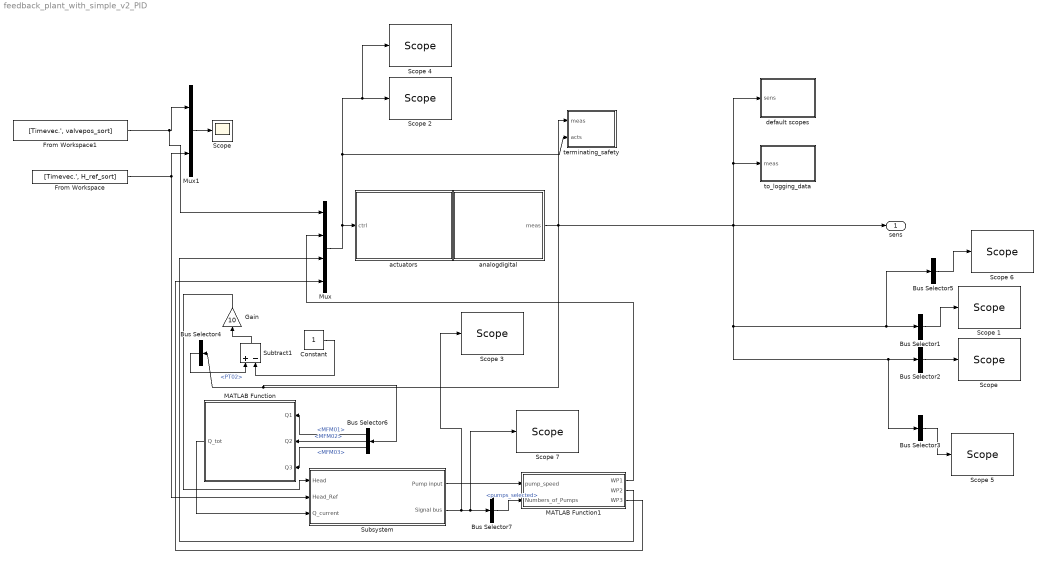
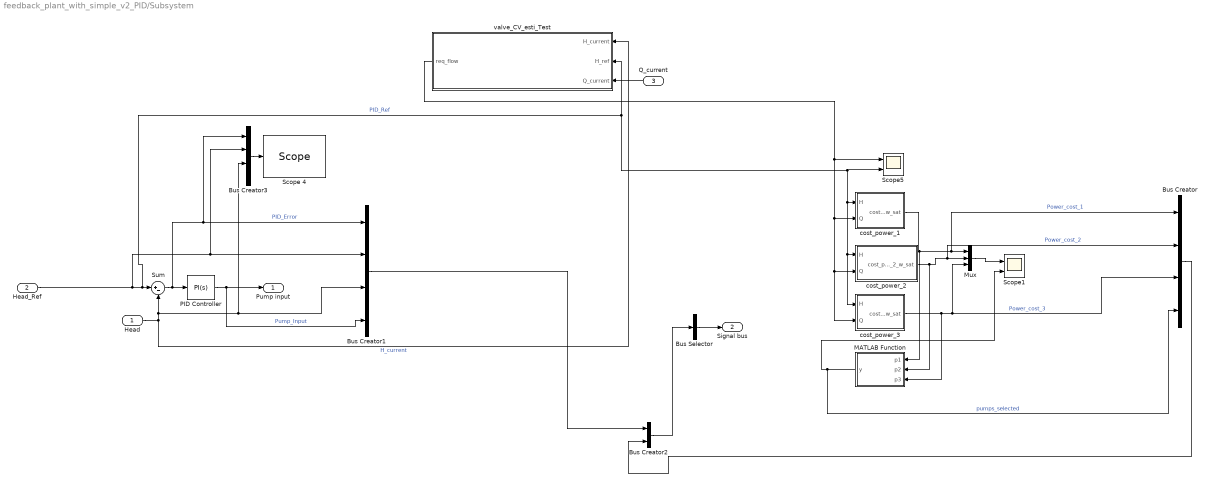
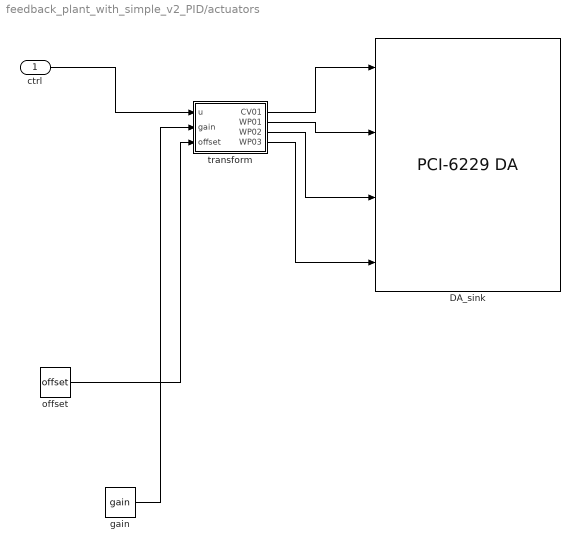
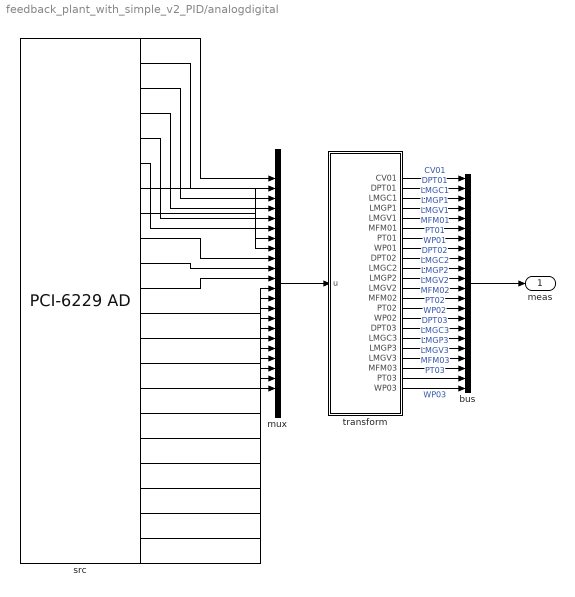
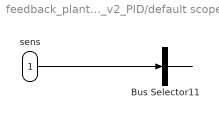
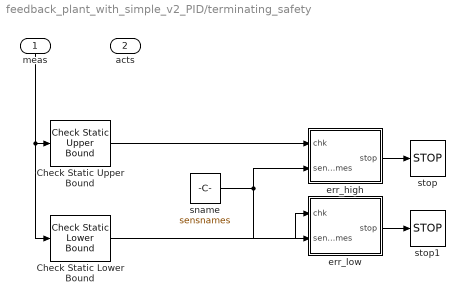
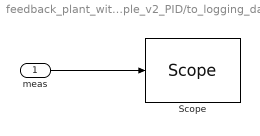
== matlab function feedback_plant_with_simple_v2_PID/actuators/transform ==
function [CV01,WP01,WP02,WP03]  = fcn(u,gain,offset)
   y = u.*gain-offset;
CV01 = y(1);
WP01 = y(2);
WP02 = y(3);
WP03 = y(4);

== matlab function feedback_plant_with_simple_v2_PID/analogdigital/transform ==
function [CV01,DPT01,LMGC1,LMGP1,LMGV1,MFM01,PT01,WP01,DPT02,LMGC2,LMGP2,LMGV2,MFM02,PT02,WP02,DPT03,LMGC3,LMGP3,LMGV3,MFM03,PT03,WP03]  = fcn(u,gain,offset)
   y = u(:).*gain(:)-offset(:);
CV01 = y(1);
DPT01 = y(2);
LMGC1 = y(3);
LMGP1 = y(4);
LMGV1 = y(5);
MFM01 = y(6);
PT01 = y(7);
WP01 = y(8);
DPT02 = y(9);
LMGC2 = y(10);
LMGP2 = y(11);
LMGV2 = y(12);
MFM02 = y(13);
PT02 = y(14);
WP02 = y(15);
DPT03 = y(16);
LMGC3 = y(17);
LMGP3 = y(18);
LMGV3 = y(19);
MFM03 = y(20);
PT03 = y(21);
WP03 = y(22);

== matlab function feedback_plant_with_simple_v2_PID/MATLAB Function ==
function Q_tot = fcn(Q1, Q2, Q3)

Q_tot = ((Q1 + Q2 + Q3) *60 * 60)/1000;

== matlab function feedback_plant_with_simple_v2_PID/MATLAB Function1 ==
function [WP1, WP2, WP3] = fcn(pump_speed, Numbers_of_Pumps)
WP1 = 0;
WP2 = 0;
WP3 = 0;
if Numbers_of_Pumps == 1
    WP1 = pump_speed;
elseif Numbers_of_Pumps == 2
    WP1 = 1;
    WP2 = pump_speed;
elseif Numbers_of_Pumps == 3
    WP1 = 1;
    WP2 = 1;
    WP3 = pump_speed;
end

== matlab function feedback_plant_with_simple_v2_PID/Subsystem/MATLAB Function ==
 function y = fcn(p1, p2, p3)
y = 1;
if p2 == 100000
    %2 pumps?
    y = 3;
elseif p1 == 50000
    y = 2;
    %3 pumps? 
end

== matlab function feedback_plant_with_simple_v2_PID/Subsystem/cost_power_1 ==
function cost_power_1_w_sat = cost_power_1(H,Q)
%#codegen

%    This function was generated by the Symbolic Math Toolbox version 7.0.
%    22-Aug-2016 11:17:26

t2 = H.^5.314163576626763e-1;
t3 = t2.*4.673851686285024e2;
t4 = Q.^1.284992200316062;
t5 = t4.*9.427556616520734e1;
t13 = H.*Q.*3.590092811013802;
t6 = t3+t5-t13;
t7 = H.^1.157084314722127;
t8 = t7.*6.132915089183577;
t9 = Q.^2.682790628284203;
t10 = t9.*1.270953547543209;
t11 = H.*Q.*2.633327680950001;
t12 = t8+t10+t11;
cost_power_1_w_sat = double(((t6 <= 1.0e3) || (1.5e3 < t12)) || (3.5e3 <= t6)).*5.0e4+t12.*double(((1.0e3 < t6) && (t12 <= 1.5e3)) && (t6 < 3.5e3));

== matlab function feedback_plant_with_simple_v2_PID/Subsystem/cost_power_2 ==
function cost_power_2_w_sat = cost_power_2(H,Q)
%#codegen

%    This function was generated by the Symbolic Math Toolbox version 7.0.
%    22-Aug-2016 11:17:26

t2 = Q.*(1.0./2.0);
t3 = t2.^1.284992200316062;
t4 = t3.*9.427556616520734e1;
t5 = H.^5.314163576626763e-1;
t6 = t5.*4.673851686285024e2;
t14 = H.*Q.*1.795046405506901;
t7 = t4+t6-t14;
t8 = H.^1.157084314722127;
t9 = t8.*6.132915089183577;
t10 = H.*Q.*1.316663840475001;
t11 = t2.^2.682790628284203;
t12 = t11.*1.270953547543209;
t13 = t9+t10+t12;
cost_power_2_w_sat = double(((t7 <= 1.0e3) || (1.5e3 < t13)) || (3.5e3 <= t7)).*1.0e5+t13.*double(((1.0e3 < t7) && (t13 <= 1.5e3)) && (t7 < 3.5e3)).*2.0;

== matlab function feedback_plant_with_simple_v2_PID/Subsystem/cost_power_3 ==
function cost_power_3_w_sat = cost_power_3(H,Q)
%#codegen

%    This function was generated by the Symbolic Math Toolbox version 7.0.
%    22-Aug-2016 11:17:26

t2 = Q.*(1.0./3.0);
t3 = t2.^1.284992200316062;
t4 = t3.*9.427556616520734e1;
t5 = H.^5.314163576626763e-1;
t6 = t5.*4.673851686285024e2;
t14 = H.*Q.*1.196697603671267;
t7 = t4+t6-t14;
t8 = H.^1.157084314722127;
t9 = t8.*6.132915089183577;
t10 = H.*Q.*8.777758936500004e-1;
t11 = t2.^2.682790628284203;
t12 = t11.*1.270953547543209;
t13 = t9+t10+t12;
cost_power_3_w_sat = double(((t7 <= 1.0e3) || (1.5e3 < t13)) || (3.5e3 <= t7)).*1.5e5+t13.*double(((1.0e3 < t7) && (t13 <= 1.5e3)) && (t7 < 3.5e3)).*3.0;

== matlab function feedback_plant_with_simple_v2_PID/Subsystem/valve_CV_esti_Test ==
function req_flow = valve_CV_esti_Test(H_current,H_ref,Q_current)
%#codegen

%    This function was generated by the Symbolic Math Toolbox version 7.0.
%    22-Aug-2016 11:17:28

req_flow = 1.0./sqrt(H_current).*sqrt(H_ref).*Q_current;

== matlab function feedback_plant_with_simple_v2_PID/terminating_safety/err_high ==
function stop  = fcn(chk, sensnames)
%#codegen
%test = char(sensnames.');
test = sensnames.';
k = find(test == 47);
k = [0 k];
k = [k numel(test)];
stop = 0;
for i = 1:numel(chk)
    if chk(i) == 0
        str = char(test(k(i)+1:k(i+1)-1));
        Error = [str ': VALUE TOO HIGH ']
        coder.ceval('printf', ['%s' 10 0], Error);
        stop = stop+1;
    end
end

== matlab function feedback_plant_with_simple_v2_PID/terminating_safety/err_low ==
function stop  = fcn(chk, sensnames)
%#codegen
test = char(sensnames.');
k = strfind(test, '/');
k = [0 k];
k = [k numel(sensnames)];
stop = 0;
for i = 1:numel(chk)
    if chk(i) == 0
        str = char(test(k(i)+1:k(i+1)-1));
        Error = [str ': VALUE TOO LOW']
        coder.ceval('printf', ['%s' 10 0], Error);
        stop = stop+1;
    end
end

/*
 * feedback_plant_with_simple_v2_PID.c
 *
 * Academic License - for use in teaching, academic research, and meeting
 * course requirements at degree granting institutions only.  Not for
 * government, commercial, or other organizational use.
 *
 * Code generation for model "feedback_plant_with_simple_v2_PID".
 *
 * Model version              : 1.362
 * Simulink Coder version : 8.10 (R2016a) 10-Feb-2016
 * C source code generated on : Thu Aug 25 14:37:08 2016
 *
 * Target selection: slrt.tlc
 * Note: GRT includes extra infrastructure and instrumentation for prototyping
 * Embedded hardware selection: Generic->32-bit x86 compatible
 * Code generation objectives: Unspecified
 * Validation result: Not run
 */

#include "rt_logging_mmi.h"
#include "feedback_plant_with_simple_v2_PID_capi.h"
#include "feedback_plant_with_simple_v2_PID.h"
#include "feedback_plant_with_simple_v2_PID_private.h"

/* Block signals (auto storage) */
B_feedback_plant_with_simple_v2_PID_T feedback_plant_with_simple_v2_PID_B;

/* Continuous states */
X_feedback_plant_with_simple_v2_PID_T feedback_plant_with_simple_v2_PID_X;

/* Block states (auto storage) */
DW_feedback_plant_with_simple_v2_PID_T feedback_plant_with_simple_v2_PID_DW;

/* External outputs (root outports fed by signals with auto storage) */
ExtY_feedback_plant_with_simple_v2_PID_T feedback_plant_with_simple_v2_PID_Y;

/* Real-time model */
RT_MODEL_feedback_plant_with_simple_v2_PID_T
  feedback_plant_with_simple_v2_PID_M_;
RT_MODEL_feedback_plant_with_simple_v2_PID_T *const
  feedback_plant_with_simple_v2_PID_M = &feedback_plant_with_simple_v2_PID_M_;

/*
 * This function updates continuous states using the ODE3 fixed-step
 * solver algorithm
 */
static void rt_ertODEUpdateContinuousStates(RTWSolverInfo *si )
{
  /* Solver Matrices */
  static const real_T rt_ODE3_A[3] = {
    1.0/2.0, 3.0/4.0, 1.0
  };

  static const real_T rt_ODE3_B[3][3] = {
    { 1.0/2.0, 0.0, 0.0 },

    { 0.0, 3.0/4.0, 0.0 },

    { 2.0/9.0, 1.0/3.0, 4.0/9.0 }
  };

  time_T t = rtsiGetT(si);
  time_T tnew = rtsiGetSolverStopTime(si);
  time_T h = rtsiGetStepSize(si);
  real_T *x = rtsiGetContStates(si);
  ODE3_IntgData *id = (ODE3_IntgData *)rtsiGetSolverData(si);
  real_T *y = id->y;
  real_T *f0 = id->f[0];
  real_T *f1 = id->f[1];
  real_T *f2 = id->f[2];
  real_T hB[3];
  int_T i;
  int_T nXc = 1;
  rtsiSetSimTimeStep(si,MINOR_TIME_STEP);

  /* Save the state values at time t in y, we'll use x as ynew. */
  (void) memcpy(y, x,
                (uint_T)nXc*sizeof(real_T));

  /* Assumes that rtsiSetT and ModelOutputs are up-to-date */
  /* f0 = f(t,y) */
  rtsiSetdX(si, f0);
  feedback_plant_with_simple_v2_PID_derivatives();

  /* f(:,2) = feval(odefile, t + hA(1), y + f*hB(:,1), args(:)(*)); */
  hB[0] = h * rt_ODE3_B[0][0];
  for (i = 0; i < nXc; i++) {
    x[i] = y[i] + (f0[i]*hB[0]);
  }

  rtsiSetT(si, t + h*rt_ODE3_A[0]);
  rtsiSetdX(si, f1);
  feedback_plant_with_simple_v2_PID_output();
  feedback_plant_with_simple_v2_PID_derivatives();

  /* f(:,3) = feval(odefile, t + hA(2), y + f*hB(:,2), args(:)(*)); */
  for (i = 0; i <= 1; i++) {
    hB[i] = h * rt_ODE3_B[1][i];
  }

  for (i = 0; i < nXc; i++) {
    x[i] = y[i] + (f0[i]*hB[0] + f1[i]*hB[1]);
  }

  rtsiSetT(si, t + h*rt_ODE3_A[1]);
  rtsiSetdX(si, f2);
  feedback_plant_with_simple_v2_PID_output();
  feedback_plant_with_simple_v2_PID_derivatives();

  /* tnew = t + hA(3);
     ynew = y + f*hB(:,3); */
  for (i = 0; i <= 2; i++) {
    hB[i] = h * rt_ODE3_B[2][i];
  }

  for (i = 0; i < nXc; i++) {
    x[i] = y[i] + (f0[i]*hB[0] + f1[i]*hB[1] + f2[i]*hB[2]);
  }

  rtsiSetT(si, tnew);
  rtsiSetSimTimeStep(si,MAJOR_TIME_STEP);
}

real_T rt_powd_snf(real_T u0, real_T u1)
{
  real_T y;
  real_T tmp;
  real_T tmp_0;
  if (rtIsNaN(u0) || rtIsNaN(u1)) {
    y = (rtNaN);
  } else {
    tmp = fabs(u0);
    tmp_0 = fabs(u1);
    if (rtIsInf(u1)) {
      if (tmp == 1.0) {
        y = (rtNaN);
      } else if (tmp > 1.0) {
        if (u1 > 0.0) {
          y = (rtInf);
        } else {
          y = 0.0;
        }
      } else if (u1 > 0.0) {
        y = 0.0;
      } else {
        y = (rtInf);
      }
    } else if (tmp_0 == 0.0) {
      y = 1.0;
    } else if (tmp_0 == 1.0) {
      if (u1 > 0.0) {
        y = u0;
      } else {
        y = 1.0 / u0;
      }
    } else if (u1 == 2.0) {
      y = u0 * u0;
    } else if ((u1 == 0.5) && (u0 >= 0.0)) {
      y = sqrt(u0);
    } else if ((u0 < 0.0) && (u1 > floor(u1))) {
      y = (rtNaN);
    } else {
      y = pow(u0, u1);
    }
  }

  return y;
}

/* Model output function */
void feedback_plant_with_simple_v2_PID_output(void)
{
  real_T y[22];
  real_T t6;
  real_T t12;
  boolean_T b;
  boolean_T c = false;
  uint8_T test[124];
  boolean_T x[124];
  int32_T idx;
  int32_T b_ii;
  static const char_T f[17] = { ':', ' ', 'V', 'A', 'L', 'U', 'E', ' ', 'T', 'O',
    'O', ' ', 'H', 'I', 'G', 'H', ' ' };

  char_T test_0[124];
  int8_T matches[124];
  int32_T j;
  static const char_T e[15] = { ':', ' ', 'V', 'A', 'L', 'U', 'E', ' ', 'T', 'O',
    'O', ' ', 'L', 'O', 'W' };

  int32_T i;
  char_T e_0[4];
  char_T d[4];
  int32_T loop_ub;
  int8_T k_data[126];
  char_T Error_data[140];
  int8_T ii_data[124];
  int8_T k_data_0[126];
  char_T Error_data_0[138];
  char_T test_data[123];
  char_T test_data_0[123];
  real_T y_idx_2;
  real_T y_idx_3;
  int32_T tmp;
  int8_T tmp_0;
  if (rtmIsMajorTimeStep(feedback_plant_with_simple_v2_PID_M)) {
    /* set solver stop time */
    if (!(feedback_plant_with_simple_v2_PID_M->Timing.clockTick0+1)) {
      rtsiSetSolverStopTime(&feedback_plant_with_simple_v2_PID_M->solverInfo,
                            ((feedback_plant_with_simple_v2_PID_M->Timing.clockTickH0
        + 1) * feedback_plant_with_simple_v2_PID_M->Timing.stepSize0 *
        4294967296.0));
    } else {
      rtsiSetSolverStopTime(&feedback_plant_with_simple_v2_PID_M->solverInfo,
                            ((feedback_plant_with_simple_v2_PID_M->Timing.clockTick0
        + 1) * feedback_plant_with_simple_v2_PID_M->Timing.stepSize0 +
        feedback_plant_with_simple_v2_PID_M->Timing.clockTickH0 *
        feedback_plant_with_simple_v2_PID_M->Timing.stepSize0 * 4294967296.0));
    }
  }                                    /* end MajorTimeStep */

  /* Update absolute time of base rate at minor time step */
  if (rtmIsMinorTimeStep(feedback_plant_with_simple_v2_PID_M)) {
    feedback_plant_with_simple_v2_PID_M->Timing.t[0] = rtsiGetT
      (&feedback_plant_with_simple_v2_PID_M->solverInfo);
  }

  if (rtmIsMajorTimeStep(feedback_plant_with_simple_v2_PID_M)) {
    /* Level2 S-Function Block: '<S13>/src' (adnipcim) */
    {
      SimStruct *rts = feedback_plant_with_simple_v2_PID_M->childSfunctions[0];
      sfcnOutputs(rts, 1);
    }

    /* SignalConversion: '<S26>/TmpSignal ConversionAt SFunction Inport1' incorporates:
     *  MATLAB Function: '<S13>/transform'
     */
    feedback_plant_with_simple_v2_PID_B.TmpSignalConversionAtSFunctionI[0] =
      feedback_plant_with_simple_v2_PID_B.src_o1;
    feedback_plant_with_simple_v2_PID_B.TmpSignalConversionAtSFunctionI[1] =
      feedback_plant_with_simple_v2_PID_B.src_o2;
    feedback_plant_with_simple_v2_PID_B.TmpSignalConversionAtSFunctionI[2] =
      feedback_plant_with_simple_v2_PID_B.src_o3;
    feedback_plant_with_simple_v2_PID_B.TmpSignalConversionAtSFunctionI[3] =
      feedback_plant_with_simple_v2_PID_B.src_o4;
    feedback_plant_with_simple_v2_PID_B.TmpSignalConversionAtSFunctionI[4] =
      feedback_plant_with_simple_v2_PID_B.src_o5;
    feedback_plant_with_simple_v2_PID_B.TmpSignalConversionAtSFunctionI[5] =
      feedback_plant_with_simple_v2_PID_B.src_o6;
    feedback_plant_with_simple_v2_PID_B.TmpSignalConversionAtSFunctionI[6] =
      feedback_plant_with_simple_v2_PID_B.src_o7;
    feedback_plant_with_simple_v2_PID_B.TmpSignalConversionAtSFunctionI[7] =
      feedback_plant_with_simple_v2_PID_B.src_o8;
    feedback_plant_with_simple_v2_PID_B.TmpSignalConversionAtSFunctionI[8] =
      feedback_plant_with_simple_v2_PID_B.src_o9;
    feedback_plant_with_simple_v2_PID_B.TmpSignalConversionAtSFunctionI[9] =
      feedback_plant_with_simple_v2_PID_B.src_o10;
    feedback_plant_with_simple_v2_PID_B.TmpSignalConversionAtSFunctionI[10] =
      feedback_plant_with_simple_v2_PID_B.src_o11;
    feedback_plant_with_simple_v2_PID_B.TmpSignalConversionAtSFunctionI[11] =
      feedback_plant_with_simple_v2_PID_B.src_o12;
    feedback_plant_with_simple_v2_PID_B.TmpSignalConversionAtSFunctionI[12] =
      feedback_plant_with_simple_v2_PID_B.src_o13;
    feedback_plant_with_simple_v2_PID_B.TmpSignalConversionAtSFunctionI[13] =
      feedback_plant_with_simple_v2_PID_B.src_o14;
    feedback_plant_with_simple_v2_PID_B.TmpSignalConversionAtSFunctionI[14] =
      feedback_plant_with_simple_v2_PID_B.src_o15;
    feedback_plant_with_simple_v2_PID_B.TmpSignalConversionAtSFunctionI[15] =
      feedback_plant_with_simple_v2_PID_B.src_o16;
    feedback_plant_with_simple_v2_PID_B.TmpSignalConversionAtSFunctionI[16] =
      feedback_plant_with_simple_v2_PID_B.src_o17;
    feedback_plant_with_simple_v2_PID_B.TmpSignalConversionAtSFunctionI[17] =
      feedback_plant_with_simple_v2_PID_B.src_o18;
    feedback_plant_with_simple_v2_PID_B.TmpSignalConversionAtSFunctionI[18] =
      feedback_plant_with_simple_v2_PID_B.src_o19;
    feedback_plant_with_simple_v2_PID_B.TmpSignalConversionAtSFunctionI[19] =
      feedback_plant_with_simple_v2_PID_B.src_o20;
    feedback_plant_with_simple_v2_PID_B.TmpSignalConversionAtSFunctionI[20] =
      feedback_plant_with_simple_v2_PID_B.src_o21;
    feedback_plant_with_simple_v2_PID_B.TmpSignalConversionAtSFunctionI[21] =
      feedback_plant_with_simple_v2_PID_B.src_o22;

    /* MATLAB Function: '<S13>/transform' */
    /* MATLAB Function 'analogdigital/transform': '<S26>:1' */
    /* '<S26>:1:2' */
    for (i = 0; i < 22; i++) {
      y[i] =
        feedback_plant_with_simple_v2_PID_B.TmpSignalConversionAtSFunctionI[i] *
        feedback_plant_with_simple_v2_PID_ConstP.transform_gain[i] -
        feedback_plant_with_simple_v2_PID_ConstP.transform_offset[i];
    }

    /* '<S26>:1:3' */
    feedback_plant_with_simple_v2_PID_B.CV01 = y[0];

    /* '<S26>:1:4' */
    feedback_plant_with_simple_v2_PID_B.DPT01 = y[1];

    /* '<S26>:1:5' */
    feedback_plant_with_simple_v2_PID_B.LMGC1 = y[2];

    /* '<S26>:1:6' */
    feedback_plant_with_simple_v2_PID_B.LMGP1 = y[3];

    /* '<S26>:1:7' */
    feedback_plant_with_simple_v2_PID_B.LMGV1 = y[4];

    /* '<S26>:1:8' */
    feedback_plant_with_simple_v2_PID_B.MFM01 = y[5];

    /* '<S26>:1:9' */
    feedback_plant_with_simple_v2_PID_B.PT01 = y[6];

    /* '<S26>:1:10' */
    feedback_plant_with_simple_v2_PID_B.WP01 = y[7];

    /* '<S26>:1:11' */
    feedback_plant_with_simple_v2_PID_B.DPT02 = y[8];

    /* '<S26>:1:12' */
    feedback_plant_with_simple_v2_PID_B.LMGC2 = y[9];

    /* '<S26>:1:13' */
    feedback_plant_with_simple_v2_PID_B.LMGP2 = y[10];

    /* '<S26>:1:14' */
    feedback_plant_with_simple_v2_PID_B.LMGV2 = y[11];

    /* '<S26>:1:15' */
    feedback_plant_with_simple_v2_PID_B.MFM02 = y[12];

    /* '<S26>:1:16' */
    feedback_plant_with_simple_v2_PID_B.PT02 = y[13];

    /* '<S26>:1:17' */
    feedback_plant_with_simple_v2_PID_B.WP02 = y[14];

    /* '<S26>:1:18' */
    feedback_plant_with_simple_v2_PID_B.DPT03 = y[15];

    /* '<S26>:1:19' */
    feedback_plant_with_simple_v2_PID_B.LMGC3 = y[16];

    /* '<S26>:1:20' */
    feedback_plant_with_simple_v2_PID_B.LMGP3 = y[17];

    /* '<S26>:1:21' */
    feedback_plant_with_simple_v2_PID_B.LMGV3 = y[18];

    /* '<S26>:1:22' */
    feedback_plant_with_simple_v2_PID_B.MFM03 = y[19];

    /* '<S26>:1:23' */
    feedback_plant_with_simple_v2_PID_B.PT03 = y[20];

    /* '<S26>:1:24' */
    feedback_plant_with_simple_v2_PID_B.WP03 = y[21];

    /* Outport: '<Root>/sens' */
    feedback_plant_with_simple_v2_PID_Y.sens[0] =
      feedback_plant_with_simple_v2_PID_B.CV01;
    feedback_plant_with_simple_v2_PID_Y.sens[1] =
      feedback_plant_with_simple_v2_PID_B.DPT01;
    feedback_plant_with_simple_v2_PID_Y.sens[2] =
      feedback_plant_with_simple_v2_PID_B.LMGC1;
    feedback_plant_with_simple_v2_PID_Y.sens[3] =
      feedback_plant_with_simple_v2_PID_B.LMGP1;
    feedback_plant_with_simple_v2_PID_Y.sens[4] =
      feedback_plant_with_simple_v2_PID_B.LMGV1;
    feedback_plant_with_simple_v2_PID_Y.sens[5] =
      feedback_plant_with_simple_v2_PID_B.MFM01;
    feedback_plant_with_simple_v2_PID_Y.sens[6] =
      feedback_plant_with_simple_v2_PID_B.PT01;
    feedback_plant_with_simple_v2_PID_Y.sens[7] =
      feedback_plant_with_simple_v2_PID_B.WP01;
    feedback_plant_with_simple_v2_PID_Y.sens[8] =
      feedback_plant_with_simple_v2_PID_B.DPT02;
    feedback_plant_with_simple_v2_PID_Y.sens[9] =
      feedback_plant_with_simple_v2_PID_B.LMGC2;
    feedback_plant_with_simple_v2_PID_Y.sens[10] =
      feedback_plant_with_simple_v2_PID_B.LMGP2;
    feedback_plant_with_simple_v2_PID_Y.sens[11] =
      feedback_plant_with_simple_v2_PID_B.LMGV2;
    feedback_plant_with_simple_v2_PID_Y.sens[12] =
      feedback_plant_with_simple_v2_PID_B.MFM02;
    feedback_plant_with_simple_v2_PID_Y.sens[13] =
      feedback_plant_with_simple_v2_PID_B.PT02;
    feedback_plant_with_simple_v2_PID_Y.sens[14] =
      feedback_plant_with_simple_v2_PID_B.WP02;
    feedback_plant_with_simple_v2_PID_Y.sens[15] =
      feedback_plant_with_simple_v2_PID_B.DPT03;
    feedback_plant_with_simple_v2_PID_Y.sens[16] =
      feedback_plant_with_simple_v2_PID_B.LMGC3;
    feedback_plant_with_simple_v2_PID_Y.sens[17] =
      feedback_plant_with_simple_v2_PID_B.LMGP3;
    feedback_plant_with_simple_v2_PID_Y.sens[18] =
      feedback_plant_with_simple_v2_PID_B.LMGV3;
    feedback_plant_with_simple_v2_PID_Y.sens[19] =
      feedback_plant_with_simple_v2_PID_B.MFM03;
    feedback_plant_with_simple_v2_PID_Y.sens[20] =
      feedback_plant_with_simple_v2_PID_B.PT03;
    feedback_plant_with_simple_v2_PID_Y.sens[21] =
      feedback_plant_with_simple_v2_PID_B.WP03;
  }

  /* FromWorkspace: '<Root>/From Workspace1' */
  {
    real_T t = feedback_plant_with_simple_v2_PID_M->Timing.t[0];
    real_T *pTimeValues = (real_T *)
      feedback_plant_with_simple_v2_PID_DW.FromWorkspace1_PWORK.TimePtr;
    real_T *pDataValues = (real_T *)
      feedback_plant_with_simple_v2_PID_DW.FromWorkspace1_PWORK.DataPtr;
    if (t < pTimeValues[0]) {
      feedback_plant_with_simple_v2_PID_B.FromWorkspace1 = 0.0;
    } else if (t >= pTimeValues[184]) {
      feedback_plant_with_simple_v2_PID_B.FromWorkspace1 = pDataValues[184];
    } else {
      int_T currTimeIndex =
        feedback_plant_with_simple_v2_PID_DW.FromWorkspace1_IWORK.PrevIndex;
      if (t < pTimeValues[currTimeIndex]) {
        while (t < pTimeValues[currTimeIndex]) {
          currTimeIndex--;
        }
      } else {
        while (t >= pTimeValues[currTimeIndex + 1]) {
          currTimeIndex++;
        }
      }

      feedback_plant_with_simple_v2_PID_B.FromWorkspace1 =
        pDataValues[currTimeIndex];
      feedback_plant_with_simple_v2_PID_DW.FromWorkspace1_IWORK.PrevIndex =
        currTimeIndex;
    }
  }

  /* FromWorkspace: '<Root>/From Workspace' */
  {
    real_T t = feedback_plant_with_simple_v2_PID_M->Timing.t[0];
    real_T *pTimeValues = (real_T *)
      feedback_plant_with_simple_v2_PID_DW.FromWorkspace_PWORK.TimePtr;
    real_T *pDataValues = (real_T *)
      feedback_plant_with_simple_v2_PID_DW.FromWorkspace_PWORK.DataPtr;
    if (t < pTimeValues[0]) {
      feedback_plant_with_simple_v2_PID_B.FromWorkspace = 0.0;
    } else if (t >= pTimeValues[184]) {
      feedback_plant_with_simple_v2_PID_B.FromWorkspace = pDataValues[184];
    } else {
      int_T currTimeIndex =
        feedback_plant_with_simple_v2_PID_DW.FromWorkspace_IWORK.PrevIndex;
      if (t < pTimeValues[currTimeIndex]) {
        while (t < pTimeValues[currTimeIndex]) {
          currTimeIndex--;
        }
      } else {
        while (t >= pTimeValues[currTimeIndex + 1]) {
          currTimeIndex++;
        }
      }

      feedback_plant_with_simple_v2_PID_B.FromWorkspace =
        pDataValues[currTimeIndex];
      feedback_plant_with_simple_v2_PID_DW.FromWorkspace_IWORK.PrevIndex =
        currTimeIndex;
    }
  }

  if (rtmIsMajorTimeStep(feedback_plant_with_simple_v2_PID_M)) {
    /* ok to acquire for <S3>/S-Function */
    feedback_plant_with_simple_v2_PID_DW.SFunction_IWORK.AcquireOK = 1;

    /* ok to acquire for <S4>/S-Function */
    feedback_plant_with_simple_v2_PID_DW.SFunction_IWORK_l.AcquireOK = 1;
  }

  /* ok to acquire for <S5>/S-Function */
  feedback_plant_with_simple_v2_PID_DW.SFunction_IWORK_i.AcquireOK = 1;

  /* ok to acquire for <S6>/S-Function */
  feedback_plant_with_simple_v2_PID_DW.SFunction_IWORK_o.AcquireOK = 1;

  /* ok to acquire for <S7>/S-Function */
  feedback_plant_with_simple_v2_PID_DW.SFunction_IWORK_n.AcquireOK = 1;
  if (rtmIsMajorTimeStep(feedback_plant_with_simple_v2_PID_M)) {
    /* ok to acquire for <S8>/S-Function */
    feedback_plant_with_simple_v2_PID_DW.SFunction_IWORK_g.AcquireOK = 1;

    /* ok to acquire for <S9>/S-Function */
    feedback_plant_with_simple_v2_PID_DW.SFunction_IWORK_l4.AcquireOK = 1;
  }

  /* ok to acquire for <S10>/S-Function */
  feedback_plant_with_simple_v2_PID_DW.SFunction_IWORK_l0.AcquireOK = 1;
  if (rtmIsMajorTimeStep(feedback_plant_with_simple_v2_PID_M)) {
    /* Sum: '<Root>/Subtract1' incorporates:
     *  Constant: '<Root>/Constant'
     */
    feedback_plant_with_simple_v2_PID_B.Subtract1 =
      feedback_plant_with_simple_v2_PID_B.PT02 - 1.0;

    /* Gain: '<Root>/Gain' */
    feedback_plant_with_simple_v2_PID_B.Gain = 10.0 *
      feedback_plant_with_simple_v2_PID_B.Subtract1;
  }

  /* Sum: '<S11>/Sum' */
  feedback_plant_with_simple_v2_PID_B.PID_Error =
    feedback_plant_with_simple_v2_PID_B.FromWorkspace -
    feedback_plant_with_simple_v2_PID_B.Gain;

  /* Gain: '<S18>/Proportional Gain' */
  feedback_plant_with_simple_v2_PID_B.ProportionalGain = 0.03 *
    feedback_plant_with_simple_v2_PID_B.PID_Error;

  /* Integrator: '<S18>/Integrator' */
  feedback_plant_with_simple_v2_PID_B.Integrator =
    feedback_plant_with_simple_v2_PID_X.Integrator_CSTATE;

  /* Sum: '<S18>/Sum' */
  feedback_plant_with_simple_v2_PID_B.Sum =
    feedback_plant_with_simple_v2_PID_B.ProportionalGain +
    feedback_plant_with_simple_v2_PID_B.Integrator;

  /* Saturate: '<S18>/Saturate' */
  t6 = feedback_plant_with_simple_v2_PID_B.Sum;
  t12 = 0.0;
  y_idx_2 = 1.0;
  if (t6 > y_idx_2) {
    feedback_plant_with_simple_v2_PID_B.Saturate = y_idx_2;
  } else if (t6 < t12) {
    feedback_plant_with_simple_v2_PID_B.Saturate = t12;
  } else {
    feedback_plant_with_simple_v2_PID_B.Saturate = t6;
  }

  /* End of Saturate: '<S18>/Saturate' */
  if (rtmIsMajorTimeStep(feedback_plant_with_simple_v2_PID_M)) {
    /* MATLAB Function: '<Root>/MATLAB Function' */
    /* MATLAB Function 'MATLAB Function': '<S1>:1' */
    /* '<S1>:1:3' */
    feedback_plant_with_simple_v2_PID_B.Q_tot =
      ((feedback_plant_with_simple_v2_PID_B.MFM01 +
        feedback_plant_with_simple_v2_PID_B.MFM02) +
       feedback_plant_with_simple_v2_PID_B.MFM03) * 60.0 * 60.0 / 1000.0;
  }

  /* MATLAB Function: '<S11>/valve_CV_esti_Test' */
  /* MATLAB Function 'Subsystem/valve_CV_esti_Test': '<S23>:1' */
  /*     This function was generated by the Symbolic Math Toolbox version 7.0. */
  /*     22-Aug-2016 11:17:28 */
  /* '<S23>:1:7' */
  feedback_plant_with_simple_v2_PID_B.req_flow = 1.0 / sqrt
    (feedback_plant_with_simple_v2_PID_B.Gain) * sqrt
    (feedback_plant_with_simple_v2_PID_B.FromWorkspace) *
    feedback_plant_with_simple_v2_PID_B.Q_tot;

  /* MATLAB Function: '<S11>/cost_power_1' */
  /* MATLAB Function 'Subsystem/cost_power_1': '<S20>:1' */
  /*     This function was generated by the Symbolic Math Toolbox version 7.0. */
  /*     22-Aug-2016 11:17:26 */
  /* '<S20>:1:7' */
  /* '<S20>:1:8' */
  /* '<S20>:1:9' */
  /* '<S20>:1:10' */
  /* '<S20>:1:11' */
  /* '<S20>:1:12' */
  t6 = (rt_powd_snf(feedback_plant_with_simple_v2_PID_B.FromWorkspace,
                    0.53141635766267625) * 467.38516862850241 + rt_powd_snf
        (feedback_plant_with_simple_v2_PID_B.req_flow, 1.2849922003160621) *
        94.275566165207337) - feedback_plant_with_simple_v2_PID_B.FromWorkspace *
    feedback_plant_with_simple_v2_PID_B.req_flow * 3.5900928110138022;

  /* '<S20>:1:13' */
  /* '<S20>:1:14' */
  /* '<S20>:1:15' */
  /* '<S20>:1:16' */
  /* '<S20>:1:17' */
  /* '<S20>:1:18' */
  t12 = (rt_powd_snf(feedback_plant_with_simple_v2_PID_B.FromWorkspace,
                     1.157084314722127) * 6.1329150891835766 + rt_powd_snf
         (feedback_plant_with_simple_v2_PID_B.req_flow, 2.6827906282842031) *
         1.270953547543209) + feedback_plant_with_simple_v2_PID_B.FromWorkspace *
    feedback_plant_with_simple_v2_PID_B.req_flow * 2.6333276809500008;
  if ((t6 <= 1000.0) || (1500.0 < t12) || (3500.0 <= t6)) {
    /* '<S20>:1:19' */
    b = true;
  } else {
    /* '<S20>:1:19' */
    b = false;
  }

  if ((1000.0 < t6) && (t12 <= 1500.0) && (t6 < 3500.0)) {
    /* '<S20>:1:19' */
    c = true;
  } else {
    /* '<S20>:1:19' */
  }

  /* '<S20>:1:19' */
  feedback_plant_with_simple_v2_PID_B.cost_power_1_w_sat = (real_T)b * 50000.0 +
    t12 * (real_T)c;

  /* End of MATLAB Function: '<S11>/cost_power_1' */

  /* MATLAB Function: '<S11>/cost_power_2' */
  /* MATLAB Function 'Subsystem/cost_power_2': '<S21>:1' */
  /*     This function was generated by the Symbolic Math Toolbox version 7.0. */
  /*     22-Aug-2016 11:17:26 */
  /* '<S21>:1:7' */
  t12 = feedback_plant_with_simple_v2_PID_B.req_flow * 0.5;

  /* '<S21>:1:8' */
  /* '<S21>:1:9' */
  /* '<S21>:1:10' */
  /* '<S21>:1:11' */
  /* '<S21>:1:12' */
  /* '<S21>:1:13' */
  t6 = (rt_powd_snf(t12, 1.2849922003160621) * 94.275566165207337 + rt_powd_snf
        (feedback_plant_with_simple_v2_PID_B.FromWorkspace, 0.53141635766267625)
        * 467.38516862850241) -
    feedback_plant_with_simple_v2_PID_B.FromWorkspace *
    feedback_plant_with_simple_v2_PID_B.req_flow * 1.7950464055069011;

  /* '<S21>:1:14' */
  /* '<S21>:1:15' */
  /* '<S21>:1:16' */
  /* '<S21>:1:17' */
  /* '<S21>:1:18' */
  /* '<S21>:1:19' */
  t12 = (feedback_plant_with_simple_v2_PID_B.FromWorkspace *
         feedback_plant_with_simple_v2_PID_B.req_flow * 1.3166638404750011 +
         rt_powd_snf(feedback_plant_with_simple_v2_PID_B.FromWorkspace,
                     1.157084314722127) * 6.1329150891835766) + rt_powd_snf(t12,
    2.6827906282842031) * 1.270953547543209;
  if ((t6 <= 1000.0) || (1500.0 < t12) || (3500.0 <= t6)) {
    /* '<S21>:1:20' */
    b = true;
  } else {
    /* '<S21>:1:20' */
    b = false;
  }

  if ((1000.0 < t6) && (t12 <= 1500.0) && (t6 < 3500.0)) {
    /* '<S21>:1:20' */
    c = true;
  } else {
    /* '<S21>:1:20' */
    c = false;
  }

  /* '<S21>:1:20' */
  feedback_plant_with_simple_v2_PID_B.cost_power_2_w_sat = t12 * (real_T)c * 2.0
    + (real_T)b * 100000.0;

  /* End of MATLAB Function: '<S11>/cost_power_2' */

  /* MATLAB Function: '<S11>/cost_power_3' */
  /* MATLAB Function 'Subsystem/cost_power_3': '<S22>:1' */
  /*     This function was generated by the Symbolic Math Toolbox version 7.0. */
  /*     22-Aug-2016 11:17:26 */
  /* '<S22>:1:7' */
  t12 = feedback_plant_with_simple_v2_PID_B.req_flow * 0.33333333333333331;

  /* '<S22>:1:8' */
  /* '<S22>:1:9' */
  /* '<S22>:1:10' */
  /* '<S22>:1:11' */
  /* '<S22>:1:12' */
  /* '<S22>:1:13' */
  t6 = (rt_powd_snf(t12, 1.2849922003160621) * 94.275566165207337 + rt_powd_snf
        (feedback_plant_with_simple_v2_PID_B.FromWorkspace, 0.53141635766267625)
        * 467.38516862850241) -
    feedback_plant_with_simple_v2_PID_B.FromWorkspace *
    feedback_plant_with_simple_v2_PID_B.req_flow * 1.1966976036712671;

  /* '<S22>:1:14' */
  /* '<S22>:1:15' */
  /* '<S22>:1:16' */
  /* '<S22>:1:17' */
  /* '<S22>:1:18' */
  /* '<S22>:1:19' */
  t12 = (feedback_plant_with_simple_v2_PID_B.FromWorkspace *
         feedback_plant_with_simple_v2_PID_B.req_flow * 0.87777589365000042 +
         rt_powd_snf(feedback_plant_with_simple_v2_PID_B.FromWorkspace,
                     1.157084314722127) * 6.1329150891835766) + rt_powd_snf(t12,
    2.6827906282842031) * 1.270953547543209;
  if ((t6 <= 1000.0) || (1500.0 < t12) || (3500.0 <= t6)) {
    /* '<S22>:1:20' */
    b = true;
  } else {
    /* '<S22>:1:20' */
    b = false;
  }

  if ((1000.0 < t6) && (t12 <= 1500.0) && (t6 < 3500.0)) {
    /* '<S22>:1:20' */
    c = true;
  } else {
    /* '<S22>:1:20' */
    c = false;
  }

  /* '<S22>:1:20' */
  feedback_plant_with_simple_v2_PID_B.cost_power_3_w_sat = t12 * (real_T)c * 3.0
    + (real_T)b * 150000.0;

  /* End of MATLAB Function: '<S11>/cost_power_3' */

  /* MATLAB Function: '<S11>/MATLAB Function' */
  /* MATLAB Function 'Subsystem/MATLAB Function': '<S17>:1' */
  /* '<S17>:1:2' */
  feedback_plant_with_simple_v2_PID_B.y = 1.0;
  if (feedback_plant_with_simple_v2_PID_B.cost_power_2_w_sat == 100000.0) {
    /* '<S17>:1:3' */
    /* 2 pumps? */
    /* '<S17>:1:5' */
    feedback_plant_with_simple_v2_PID_B.y = 3.0;
  } else {
    if (feedback_plant_with_simple_v2_PID_B.cost_power_1_w_sat == 50000.0) {
      /* '<S17>:1:6' */
      /* '<S17>:1:7' */
      feedback_plant_with_simple_v2_PID_B.y = 2.0;

      /* 3 pumps?  */
    }
  }

  /* End of MATLAB Function: '<S11>/MATLAB Function' */

  /* MATLAB Function: '<Root>/MATLAB Function1' */
  /* MATLAB Function 'MATLAB Function1': '<S2>:1' */
  /* '<S2>:1:2' */
  feedback_plant_with_simple_v2_PID_B.WP1 = 0.0;

  /* '<S2>:1:3' */
  feedback_plant_with_simple_v2_PID_B.WP2 = 0.0;

  /* '<S2>:1:4' */
  feedback_plant_with_simple_v2_PID_B.WP3 = 0.0;
  if (feedback_plant_with_simple_v2_PID_B.y == 1.0) {
    /* '<S2>:1:5' */
    /* '<S2>:1:6' */
    feedback_plant_with_simple_v2_PID_B.WP1 =
      feedback_plant_with_simple_v2_PID_B.Saturate;
  } else if (feedback_plant_with_simple_v2_PID_B.y == 2.0) {
    /* '<S2>:1:7' */
    /* '<S2>:1:8' */
    feedback_plant_with_simple_v2_PID_B.WP1 = 1.0;

    /* '<S2>:1:9' */
    feedback_plant_with_simple_v2_PID_B.WP2 =
      feedback_plant_with_simple_v2_PID_B.Saturate;
  } else {
    if (feedback_plant_with_simple_v2_PID_B.y == 3.0) {
      /* '<S2>:1:10' */
      /* '<S2>:1:11' */
      feedback_plant_with_simple_v2_PID_B.WP1 = 1.0;

      /* '<S2>:1:12' */
      feedback_plant_with_simple_v2_PID_B.WP2 = 1.0;

      /* '<S2>:1:13' */
      feedback_plant_with_simple_v2_PID_B.WP3 =
        feedback_plant_with_simple_v2_PID_B.Saturate;
    }
  }

  /* End of MATLAB Function: '<Root>/MATLAB Function1' */

  /* SignalConversion: '<S25>/TmpSignal ConversionAt SFunction Inport1' incorporates:
   *  MATLAB Function: '<S12>/transform'
   */
  feedback_plant_with_simple_v2_PID_B.TmpSignalConversionAtSFunctio_d[0] =
    feedback_plant_with_simple_v2_PID_B.FromWorkspace1;
  feedback_plant_with_simple_v2_PID_B.TmpSignalConversionAtSFunctio_d[1] =
    feedback_plant_with_simple_v2_PID_B.WP1;
  feedback_plant_with_simple_v2_PID_B.TmpSignalConversionAtSFunctio_d[2] =
    feedback_plant_with_simple_v2_PID_B.WP2;
  feedback_plant_with_simple_v2_PID_B.TmpSignalConversionAtSFunctio_d[3] =
    feedback_plant_with_simple_v2_PID_B.WP3;

  /* MATLAB Function: '<S12>/transform' incorporates:
   *  Constant: '<S12>/gain'
   *  Constant: '<S12>/offset'
   */
  /* MATLAB Function 'actuators/transform': '<S25>:1' */
  /* '<S25>:1:2' */
  t6 = feedback_plant_with_simple_v2_PID_B.TmpSignalConversionAtSFunctio_d[0] *
    10.0 - (-0.0);
  t12 = feedback_plant_with_simple_v2_PID_B.TmpSignalConversionAtSFunctio_d[1] *
    10.0 - (-0.0);
  y_idx_2 = feedback_plant_with_simple_v2_PID_B.TmpSignalConversionAtSFunctio_d
    [2] * 10.0 - (-0.0);
  y_idx_3 = feedback_plant_with_simple_v2_PID_B.TmpSignalConversionAtSFunctio_d
    [3] * 10.0 - (-0.0);

  /* '<S25>:1:3' */
  feedback_plant_with_simple_v2_PID_B.CV01_j = t6;

  /* '<S25>:1:4' */
  feedback_plant_with_simple_v2_PID_B.WP01_o = t12;

  /* '<S25>:1:5' */
  feedback_plant_with_simple_v2_PID_B.WP02_l = y_idx_2;

  /* '<S25>:1:6' */
  feedback_plant_with_simple_v2_PID_B.WP03_d = y_idx_3;
  if (rtmIsMajorTimeStep(feedback_plant_with_simple_v2_PID_M)) {
    /* Level2 S-Function Block: '<S12>/DA_sink' (danipcim) */
    {
      SimStruct *rts = feedback_plant_with_simple_v2_PID_M->childSfunctions[1];
      sfcnOutputs(rts, 1);
    }

    /* RelationalOperator: '<S28>/max_relop' incorporates:
     *  Constant: '<S28>/max_val'
     */
    feedback_plant_with_simple_v2_PID_B.max_relop[0] =
      (feedback_plant_with_simple_v2_PID_B.CV01 <= 1050.05);
    feedback_plant_with_simple_v2_PID_B.max_relop[1] =
      (feedback_plant_with_simple_v2_PID_B.DPT01 <= 1050.05);
    feedback_plant_with_simple_v2_PID_B.max_relop[2] =
      (feedback_plant_with_simple_v2_PID_B.LMGC1 <= 1050.05);
    feedback_plant_with_simple_v2_PID_B.max_relop[3] =
      (feedback_plant_with_simple_v2_PID_B.LMGP1 <= 4200.05);
    feedback_plant_with_simple_v2_PID_B.max_relop[4] =
      (feedback_plant_with_simple_v2_PID_B.LMGV1 <= 1050.05);
    feedback_plant_with_simple_v2_PID_B.max_relop[5] =
      (feedback_plant_with_simple_v2_PID_B.MFM01 <= 1050.05);
    feedback_plant_with_simple_v2_PID_B.max_relop[6] =
      (feedback_plant_with_simple_v2_PID_B.PT01 <= 1050.05);
    feedback_plant_with_simple_v2_PID_B.max_relop[7] =
      (feedback_plant_with_simple_v2_PID_B.WP01 <= 4200.05);
    feedback_plant_with_simple_v2_PID_B.max_relop[8] =
      (feedback_plant_with_simple_v2_PID_B.DPT02 <= 1050.05);
    feedback_plant_with_simple_v2_PID_B.max_relop[9] =
      (feedback_plant_with_simple_v2_PID_B.LMGC2 <= 1050.05);
    feedback_plant_with_simple_v2_PID_B.max_relop[10] =
      (feedback_plant_with_simple_v2_PID_B.LMGP2 <= 4200.05);
    feedback_plant_with_simple_v2_PID_B.max_relop[11] =
      (feedback_plant_with_simple_v2_PID_B.LMGV2 <= 1050.05);
    feedback_plant_with_simple_v2_PID_B.max_relop[12] =
      (feedback_plant_with_simple_v2_PID_B.MFM02 <= 1050.05);
    feedback_plant_with_simple_v2_PID_B.max_relop[13] =
      (feedback_plant_with_simple_v2_PID_B.PT02 <= 1050.05);
    feedback_plant_with_simple_v2_PID_B.max_relop[14] =
      (feedback_plant_with_simple_v2_PID_B.WP02 <= 4200.05);
    feedback_plant_with_simple_v2_PID_B.max_relop[15] =
      (feedback_plant_with_simple_v2_PID_B.DPT03 <= 1050.05);
    feedback_plant_with_simple_v2_PID_B.max_relop[16] =
      (feedback_plant_with_simple_v2_PID_B.LMGC3 <= 1050.05);
    feedback_plant_with_simple_v2_PID_B.max_relop[17] =
      (feedback_plant_with_simple_v2_PID_B.LMGP3 <= 4200.05);
    feedback_plant_with_simple_v2_PID_B.max_relop[18] =
      (feedback_plant_with_simple_v2_PID_B.LMGV3 <= 1050.05);
    feedback_plant_with_simple_v2_PID_B.max_relop[19] =
      (feedback_plant_with_simple_v2_PID_B.MFM03 <= 1050.05);
    feedback_plant_with_simple_v2_PID_B.max_relop[20] =
      (feedback_plant_with_simple_v2_PID_B.PT03 <= 1050.05);
    feedback_plant_with_simple_v2_PID_B.max_relop[21] =
      (feedback_plant_with_simple_v2_PID_B.WP03 <= 4200.05);

    /* MATLAB Function: '<S15>/err_high' incorporates:
     *  Constant: '<S15>/sname'
     */
    /* MATLAB Function 'terminating_safety/err_high': '<S29>:1' */
    /* '<S29>:1:13' */
    /* '<S29>:1:12' */
    /* test = char(sensnames.'); */
    /* '<S29>:1:4' */
    /* '<S29>:1:5' */
    for (i = 0; i < 124; i++) {
      test[i] = feedback_plant_with_simple_v2_PID_ConstP.sname_Value[i];
      x[i] = (feedback_plant_with_simple_v2_PID_ConstP.sname_Value[i] == 47);
    }

    idx = 0;
    b_ii = 1;
    b = false;
    while ((!b) && (b_ii < 125)) {
      c = false;
      if (x[b_ii - 1]) {
        idx++;
        ii_data[idx - 1] = (int8_T)b_ii;
        if (idx >= 124) {
          b = true;
        } else {
          c = true;
        }
      } else {
        c = true;
      }

      if (c) {
        b_ii++;
      }
    }

    if (1 > idx) {
      idx = 0;
    }

    /* '<S29>:1:6' */
    /* '<S29>:1:7' */
    k_data[0] = 0;
    for (i = 0; i < idx; i++) {
      k_data[i + 1] = ii_data[i];
    }

    k_data[1 + idx] = 124;

    /* '<S29>:1:8' */
    t6 = 0.0;

    /* '<S29>:1:9' */
    for (idx = 0; idx < 22; idx++) {
      /* '<S29>:1:9' */
      if (!feedback_plant_with_simple_v2_PID_B.max_relop[idx]) {
        /* '<S29>:1:10' */
        if (k_data[idx] + 1 > k_data[1 + idx] - 1) {
          b_ii = 1;
          j = 1;
        } else {
          b_ii = k_data[idx] + 1;
          j = k_data[1 + idx];
        }

        /* '<S29>:1:11' */
        /* '<S29>:1:12' */
        tmp = j - b_ii;
        loop_ub = j - b_ii;
        for (i = 0; i < loop_ub; i++) {
          test_data[i] = (int8_T)test[(b_ii + i) - 1];
        }

        tmp_0 = (int8_T)(j - b_ii);
        for (i = 0; i < tmp; i++) {
          test_data_0[i] = test_data[i];
        }

        tmp = tmp_0;
        for (i = 0; i < tmp; i++) {
          Error_data[i] = test_data_0[i];
        }

        for (i = 0; i < 17; i++) {
          Error_data[i + tmp] = f[i];
        }

        e_0[0] = '%';
        e_0[1] = 's';
        e_0[2] = '\x0a';
        e_0[3] = '\x00';
        printf(e_0, &Error_data[0]);

        /* '<S29>:1:14' */
        t6++;
      }

      /* '<S29>:1:9' */
    }

    feedback_plant_with_simple_v2_PID_B.stop_a = t6;

    /* End of MATLAB Function: '<S15>/err_high' */

    /* Stop: '<S15>/stop' */
    if (feedback_plant_with_simple_v2_PID_B.stop_a != 0.0) {
      rtmSetStopRequested(feedback_plant_with_simple_v2_PID_M, 1);
    }

    /* End of Stop: '<S15>/stop' */

    /* RelationalOperator: '<S27>/min_relop' incorporates:
     *  Constant: '<S27>/min_val'
     */
    feedback_plant_with_simple_v2_PID_B.min_relop[0] = ((-51.050000000000004) <=
      feedback_plant_with_simple_v2_PID_B.CV01);
    feedback_plant_with_simple_v2_PID_B.min_relop[1] = ((-51.050000000000004) <=
      feedback_plant_with_simple_v2_PID_B.DPT01);
    feedback_plant_with_simple_v2_PID_B.min_relop[2] = ((-51.050000000000004) <=
      feedback_plant_with_simple_v2_PID_B.LMGC1);
    feedback_plant_with_simple_v2_PID_B.min_relop[3] = ((-201.05) <=
      feedback_plant_with_simple_v2_PID_B.LMGP1);
    feedback_plant_with_simple_v2_PID_B.min_relop[4] = ((-51.050000000000004) <=
      feedback_plant_with_simple_v2_PID_B.LMGV1);
    feedback_plant_with_simple_v2_PID_B.min_relop[5] = ((-51.050000000000004) <=
      feedback_plant_with_simple_v2_PID_B.MFM01);
    feedback_plant_with_simple_v2_PID_B.min_relop[6] = ((-51.050000000000004) <=
      feedback_plant_with_simple_v2_PID_B.PT01);
    feedback_plant_with_simple_v2_PID_B.min_relop[7] = ((-201.05) <=
      feedback_plant_with_simple_v2_PID_B.WP01);
    feedback_plant_with_simple_v2_PID_B.min_relop[8] = ((-51.050000000000004) <=
      feedback_plant_with_simple_v2_PID_B.DPT02);
    feedback_plant_with_simple_v2_PID_B.min_relop[9] = ((-51.050000000000004) <=
      feedback_plant_with_simple_v2_PID_B.LMGC2);
    feedback_plant_with_simple_v2_PID_B.min_relop[10] = ((-201.05) <=
      feedback_plant_with_simple_v2_PID_B.LMGP2);
    feedback_plant_with_simple_v2_PID_B.min_relop[11] = ((-51.050000000000004) <=
      feedback_plant_with_simple_v2_PID_B.LMGV2);
    feedback_plant_with_simple_v2_PID_B.min_relop[12] = ((-51.050000000000004) <=
      feedback_plant_with_simple_v2_PID_B.MFM02);
    feedback_plant_with_simple_v2_PID_B.min_relop[13] = ((-51.050000000000004) <=
      feedback_plant_with_simple_v2_PID_B.PT02);
    feedback_plant_with_simple_v2_PID_B.min_relop[14] = ((-201.05) <=
      feedback_plant_with_simple_v2_PID_B.WP02);
    feedback_plant_with_simple_v2_PID_B.min_relop[15] = ((-51.050000000000004) <=
      feedback_plant_with_simple_v2_PID_B.DPT03);
    feedback_plant_with_simple_v2_PID_B.min_relop[16] = ((-51.050000000000004) <=
      feedback_plant_with_simple_v2_PID_B.LMGC3);
    feedback_plant_with_simple_v2_PID_B.min_relop[17] = ((-201.05) <=
      feedback_plant_with_simple_v2_PID_B.LMGP3);
    feedback_plant_with_simple_v2_PID_B.min_relop[18] = ((-51.050000000000004) <=
      feedback_plant_with_simple_v2_PID_B.LMGV3);
    feedback_plant_with_simple_v2_PID_B.min_relop[19] = ((-51.050000000000004) <=
      feedback_plant_with_simple_v2_PID_B.MFM03);
    feedback_plant_with_simple_v2_PID_B.min_relop[20] = ((-51.050000000000004) <=
      feedback_plant_with_simple_v2_PID_B.PT03);
    feedback_plant_with_simple_v2_PID_B.min_relop[21] = ((-201.05) <=
      feedback_plant_with_simple_v2_PID_B.WP03);

    /* MATLAB Function: '<S15>/err_low' incorporates:
     *  Constant: '<S15>/sname'
     */
    /* MATLAB Function 'terminating_safety/err_low': '<S30>:1' */
    /* '<S30>:1:12' */
    /* '<S30>:1:11' */
    /* '<S30>:1:3' */
    /* '<S30>:1:4' */
    idx = 0;
    for (b_ii = 0; b_ii < 124; b_ii++) {
      test_0[b_ii] = (int8_T)
        feedback_plant_with_simple_v2_PID_ConstP.sname_Value[b_ii];
      j = 1;
      while ((j <= 1) && (test_0[b_ii] == '/')) {
        j = 2;
      }

      if (j > 1) {
        matches[idx] = (int8_T)(b_ii + 1);
        idx++;
      }
    }

    for (b_ii = 0; b_ii + 1 <= idx; b_ii++) {
      ii_data[b_ii] = matches[b_ii];
    }

    /* '<S30>:1:5' */
    /* '<S30>:1:6' */
    k_data_0[0] = 0;
    for (i = 0; i < idx; i++) {
      k_data_0[i + 1] = ii_data[i];
    }

    k_data_0[1 + idx] = 124;

    /* '<S30>:1:7' */
    t6 = 0.0;

    /* '<S30>:1:8' */
    for (idx = 0; idx < 22; idx++) {
      /* '<S30>:1:8' */
      if (!feedback_plant_with_simple_v2_PID_B.min_relop[idx]) {
        /* '<S30>:1:9' */
        if (k_data_0[idx] + 1 > k_data_0[1 + idx] - 1) {
          b_ii = 1;
          j = 0;
        } else {
          b_ii = k_data_0[idx] + 1;
          j = k_data_0[1 + idx] - 1;
        }

        /* '<S30>:1:10' */
        /* '<S30>:1:11' */
        i = b_ii - 1;
        loop_ub = j - i;
        for (b_ii = 0; b_ii < loop_ub; b_ii++) {
          Error_data_0[b_ii] = test_0[i + b_ii];
        }

        for (b_ii = 0; b_ii < 15; b_ii++) {
          Error_data_0[(b_ii + j) - i] = e[b_ii];
        }

        d[0] = '%';
        d[1] = 's';
        d[2] = '\x0a';
        d[3] = '\x00';
        printf(d, &Error_data_0[0]);

        /* '<S30>:1:13' */
        t6++;
      }

      /* '<S30>:1:8' */
    }

    feedback_plant_with_simple_v2_PID_B.stop = t6;

    /* End of MATLAB Function: '<S15>/err_low' */

    /* Stop: '<S15>/stop1' */
    if (feedback_plant_with_simple_v2_PID_B.stop != 0.0) {
      rtmSetStopRequested(feedback_plant_with_simple_v2_PID_M, 1);
    }

    /* End of Stop: '<S15>/stop1' */
    for (i = 0; i < 22; i++) {
      /* Assertion: '<S27>/Assertion' */
      utAssert(feedback_plant_with_simple_v2_PID_B.min_relop[i]);
    }

    for (i = 0; i < 22; i++) {
      /* Assertion: '<S28>/Assertion' */
      utAssert(feedback_plant_with_simple_v2_PID_B.max_relop[i]);
    }

    /* ok to acquire for <S31>/S-Function */
    feedback_plant_with_simple_v2_PID_DW.SFunction_IWORK_go.AcquireOK = 1;
  }

  /* ok to acquire for <S19>/S-Function */
  feedback_plant_with_simple_v2_PID_DW.SFunction_IWORK_c.AcquireOK = 1;
  if (rtmIsMajorTimeStep(feedback_plant_with_simple_v2_PID_M)) {
  }

  /* Gain: '<S24>/ZeroGain' */
  feedback_plant_with_simple_v2_PID_B.ZeroGain = 0.0 *
    feedback_plant_with_simple_v2_PID_B.Sum;

  /* DeadZone: '<S24>/DeadZone' */
  if (feedback_plant_with_simple_v2_PID_B.Sum > 1.0) {
    feedback_plant_with_simple_v2_PID_B.DeadZone =
      feedback_plant_with_simple_v2_PID_B.Sum - 1.0;
  } else if (feedback_plant_with_simple_v2_PID_B.Sum >= 0.0) {
    feedback_plant_with_simple_v2_PID_B.DeadZone = 0.0;
  } else {
    feedback_plant_with_simple_v2_PID_B.DeadZone =
      feedback_plant_with_simple_v2_PID_B.Sum - 0.0;
  }

  /* End of DeadZone: '<S24>/DeadZone' */

  /* RelationalOperator: '<S24>/NotEqual' */
  feedback_plant_with_simple_v2_PID_B.NotEqual =
    (feedback_plant_with_simple_v2_PID_B.ZeroGain !=
     feedback_plant_with_simple_v2_PID_B.DeadZone);

  /* Signum: '<S24>/SignDeltaU' */
  t6 = feedback_plant_with_simple_v2_PID_B.DeadZone;
  if (t6 < 0.0) {
    feedback_plant_with_simple_v2_PID_B.SignDeltaU = -1.0;
  } else if (t6 > 0.0) {
    feedback_plant_with_simple_v2_PID_B.SignDeltaU = 1.0;
  } else if (t6 == 0.0) {
    feedback_plant_with_simple_v2_PID_B.SignDeltaU = 0.0;
  } else {
    feedback_plant_with_simple_v2_PID_B.SignDeltaU = t6;
  }

  /* End of Signum: '<S24>/SignDeltaU' */

  /* DataTypeConversion: '<S24>/DataTypeConv1' */
  t6 = feedback_plant_with_simple_v2_PID_B.SignDeltaU;
  if (t6 < 128.0) {
    if (t6 >= -128.0) {
      tmp_0 = (int8_T)t6;
    } else {
      tmp_0 = MIN_int8_T;
    }
  } else {
    tmp_0 = MAX_int8_T;
  }

  feedback_plant_with_simple_v2_PID_B.DataTypeConv1 = tmp_0;

  /* End of DataTypeConversion: '<S24>/DataTypeConv1' */

  /* Gain: '<S18>/Integral Gain' */
  feedback_plant_with_simple_v2_PID_B.IntegralGain = 0.04 *
    feedback_plant_with_simple_v2_PID_B.PID_Error;

  /* Signum: '<S24>/SignPreIntegrator' */
  t6 = feedback_plant_with_simple_v2_PID_B.IntegralGain;
  if (t6 < 0.0) {
    feedback_plant_with_simple_v2_PID_B.SignPreIntegrator = -1.0;
  } else if (t6 > 0.0) {
    feedback_plant_with_simple_v2_PID_B.SignPreIntegrator = 1.0;
  } else if (t6 == 0.0) {
    feedback_plant_with_simple_v2_PID_B.SignPreIntegrator = 0.0;
  } else {
    feedback_plant_with_simple_v2_PID_B.SignPreIntegrator = t6;
  }

  /* End of Signum: '<S24>/SignPreIntegrator' */

  /* DataTypeConversion: '<S24>/DataTypeConv2' */
  t6 = floor(feedback_plant_with_simple_v2_PID_B.SignPreIntegrator);
  if (rtIsNaN(t6) || rtIsInf(t6)) {
    t6 = 0.0;
  } else {
    t6 = fmod(t6, 256.0);
  }

  feedback_plant_with_simple_v2_PID_B.DataTypeConv2 = (int8_T)(t6 < 0.0 ?
    (int32_T)(int8_T)-(int8_T)(uint8_T)-t6 : (int32_T)(int8_T)(uint8_T)t6);

  /* End of DataTypeConversion: '<S24>/DataTypeConv2' */

  /* RelationalOperator: '<S24>/Equal' */
  feedback_plant_with_simple_v2_PID_B.Equal =
    (feedback_plant_with_simple_v2_PID_B.DataTypeConv1 ==
     feedback_plant_with_simple_v2_PID_B.DataTypeConv2);

  /* Logic: '<S24>/AND' */
  feedback_plant_with_simple_v2_PID_B.AND =
    (feedback_plant_with_simple_v2_PID_B.NotEqual &&
     feedback_plant_with_simple_v2_PID_B.Equal);
  if (rtmIsMajorTimeStep(feedback_plant_with_simple_v2_PID_M)) {
    /* Memory: '<S24>/Memory' */
    feedback_plant_with_simple_v2_PID_B.Memory =
      feedback_plant_with_simple_v2_PID_DW.Memory_PreviousInput;
  }

  /* Switch: '<S18>/Switch' incorporates:
   *  Constant: '<S18>/Constant'
   */
  if (feedback_plant_with_simple_v2_PID_B.Memory) {
    feedback_plant_with_simple_v2_PID_B.Switch = 0.0;
  } else {
    feedback_plant_with_simple_v2_PID_B.Switch =
      feedback_plant_with_simple_v2_PID_B.IntegralGain;
  }

  /* End of Switch: '<S18>/Switch' */
}

/* Model update function */
void feedback_plant_with_simple_v2_PID_update(void)
{
  if (rtmIsMajorTimeStep(feedback_plant_with_simple_v2_PID_M)) {
    /* Update for Memory: '<S24>/Memory' */
    feedback_plant_with_simple_v2_PID_DW.Memory_PreviousInput =
      feedback_plant_with_simple_v2_PID_B.AND;
  }

  if (rtmIsMajorTimeStep(feedback_plant_with_simple_v2_PID_M)) {
    rt_ertODEUpdateContinuousStates
      (&feedback_plant_with_simple_v2_PID_M->solverInfo);
  }

  /* Update absolute time for base rate */
  /* The "clockTick0" counts the number of times the code of this task has
   * been executed. The absolute time is the multiplication of "clockTick0"
   * and "Timing.stepSize0". Size of "clockTick0" ensures timer will not
   * overflow during the application lifespan selected.
   * Timer of this task consists of two 32 bit unsigned integers.
   * The two integers represent the low bits Timing.clockTick0 and the high bits
   * Timing.clockTickH0. When the low bit overflows to 0, the high bits increment.
   */
  if (!(++feedback_plant_with_simple_v2_PID_M->Timing.clockTick0)) {
    ++feedback_plant_with_simple_v2_PID_M->Timing.clockTickH0;
  }

  feedback_plant_with_simple_v2_PID_M->Timing.t[0] = rtsiGetSolverStopTime
    (&feedback_plant_with_simple_v2_PID_M->solverInfo);

  {
    /* Update absolute timer for sample time: [0.01s, 0.0s] */
    /* The "clockTick1" counts the number of times the code of this task has
     * been executed. The absolute time is the multiplication of "clockTick1"
     * and "Timing.stepSize1". Size of "clockTick1" ensures timer will not
     * overflow during the application lifespan selected.
     * Timer of this task consists of two 32 bit unsigned integers.
     * The two integers represent the low bits Timing.clockTick1 and the high bits
     * Timing.clockTickH1. When the low bit overflows to 0, the high bits increment.
     */
    if (!(++feedback_plant_with_simple_v2_PID_M->Timing.clockTick1)) {
      ++feedback_plant_with_simple_v2_PID_M->Timing.clockTickH1;
    }

    feedback_plant_with_simple_v2_PID_M->Timing.t[1] =
      feedback_plant_with_simple_v2_PID_M->Timing.clockTick1 *
      feedback_plant_with_simple_v2_PID_M->Timing.stepSize1 +
      feedback_plant_with_simple_v2_PID_M->Timing.clockTickH1 *
      feedback_plant_with_simple_v2_PID_M->Timing.stepSize1 * 4294967296.0;
  }
}
